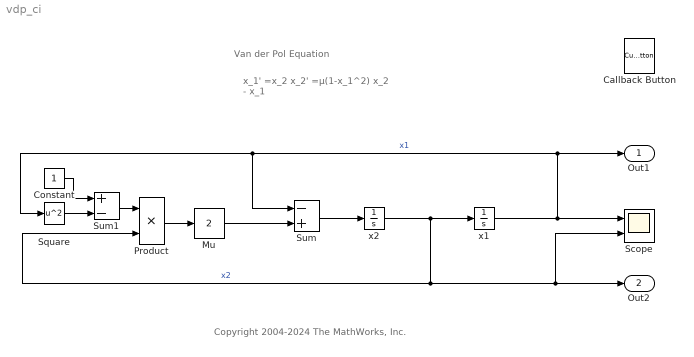
/*
 * vdp_ci.c
 *
 * Code generation for model "vdp_ci".
 *
 * Model version              : 13.2
 * Simulink Coder version : 26.1 (R2026a) 20-Nov-2025
 * C source code generated on : Fri Sep 25 10:50:05 2026
 *
 * Target selection: grt.tlc
 * Note: GRT includes extra infrastructure and instrumentation for prototyping
 * Embedded hardware selection: 32-bit Generic
 * Emulation hardware selection:
 *    Differs from embedded hardware (MATLAB Host)
 * Code generation objectives: Unspecified
 * Validation result: Not run
 */

#include "vdp_ci.h"
#include "vdp_ci_private.h"
#include "rt_nonfinite.h"

/* Block signals (default storage) */
B_vdp_ci_T vdp_ci_B;

/* Continuous states */
X_vdp_ci_T vdp_ci_X;

/* Disabled State Vector */
XDis_vdp_ci_T vdp_ci_XDis;

/* External outputs (root outports fed by signals with default storage) */
ExtY_vdp_ci_T vdp_ci_Y;

/* Real-time model */
static RT_MODEL_vdp_ci_T vdp_ci_M_;
RT_MODEL_vdp_ci_T *const vdp_ci_M = &vdp_ci_M_;

/*
 * This function updates continuous states using the ODE4 fixed-step
 * solver algorithm
 */
static void rt_ertODEUpdateContinuousStates(RTWSolverInfo *si )
{
  time_T t = rtsiGetT(si);
  time_T tnew = rtsiGetSolverStopTime(si);
  time_T h = rtsiGetStepSize(si);
  real_T *x = rtsiGetContStates(si);
  ODE4_IntgData *id = (ODE4_IntgData *)rtsiGetSolverData(si);
  real_T *y = id->y;
  real_T *f0 = id->f[0];
  real_T *f1 = id->f[1];
  real_T *f2 = id->f[2];
  real_T *f3 = id->f[3];
  real_T temp;
  int_T i;
  int_T nXc = 2;
  rtsiSetSimTimeStep(si,MINOR_TIME_STEP);

  /* Save the state values at time t in y, we'll use x as ynew. */
  (void) memcpy(y, x,
                (uint_T)nXc*sizeof(real_T));

  /* Assumes that rtsiSetT and ModelOutputs are up-to-date */
  /* f0 = f(t,y) */
  rtsiSetdX(si, f0);
  vdp_ci_derivatives();

  /* f1 = f(t + (h/2), y + (h/2)*f0) */
  temp = 0.5 * h;
  for (i = 0; i < nXc; i++) {
    x[i] = y[i] + (temp*f0[i]);
  }

  rtsiSetT(si, t + temp);
  rtsiSetdX(si, f1);
  vdp_ci_output();
  vdp_ci_derivatives();

  /* f2 = f(t + (h/2), y + (h/2)*f1) */
  for (i = 0; i < nXc; i++) {
    x[i] = y[i] + (temp*f1[i]);
  }

  rtsiSetdX(si, f2);
  vdp_ci_output();
  vdp_ci_derivatives();

  /* f3 = f(t + h, y + h*f2) */
  for (i = 0; i < nXc; i++) {
    x[i] = y[i] + (h*f2[i]);
  }

  rtsiSetT(si, tnew);
  rtsiSetdX(si, f3);
  vdp_ci_output();
  vdp_ci_derivatives();

  /* tnew = t + h
     ynew = y + (h/6)*(f0 + 2*f1 + 2*f2 + 2*f3) */
  temp = h / 6.0;
  for (i = 0; i < nXc; i++) {
    x[i] = y[i] + temp*(f0[i] + 2.0*f1[i] + 2.0*f2[i] + f3[i]);
  }

  rtsiSetSimTimeStep(si,MAJOR_TIME_STEP);
}

/* Model output function */
void vdp_ci_output(void)
{
  if (rtmIsMajorTimeStep(vdp_ci_M)) {
    /* set solver stop time */
    if (!(vdp_ci_M->Timing.clockTick0+1)) {
      rtsiSetSolverStopTime(&vdp_ci_M->solverInfo,
                            ((vdp_ci_M->Timing.clockTickH0 + 1) *
        vdp_ci_M->Timing.stepSize0 * 4294967296.0));
    } else {
      rtsiSetSolverStopTime(&vdp_ci_M->solverInfo, ((vdp_ci_M->Timing.clockTick0
        + 1) * vdp_ci_M->Timing.stepSize0 + vdp_ci_M->Timing.clockTickH0 *
        vdp_ci_M->Timing.stepSize0 * 4294967296.0));
    }
  }                                    /* end MajorTimeStep */

  /* Update absolute time of base rate at minor time step */
  if (rtmIsMinorTimeStep(vdp_ci_M)) {
    vdp_ci_M->Timing.t[0] = rtsiGetT(&vdp_ci_M->solverInfo);
  }

  /* Integrator: '<Root>/x1' */
  vdp_ci_B.x1 = vdp_ci_X.x1_CSTATE;

  /* Outport: '<Root>/Out1' */
  vdp_ci_Y.Out1 = vdp_ci_B.x1;

  /* Integrator: '<Root>/x2' */
  vdp_ci_B.x2 = vdp_ci_X.x2_CSTATE;

  /* Outport: '<Root>/Out2' */
  vdp_ci_Y.Out2 = vdp_ci_B.x2;
  if (rtmIsMajorTimeStep(vdp_ci_M) &&
      vdp_ci_M->Timing.TaskCounters.TID[1] == 0) {
  }

  /* Sum: '<Root>/Sum' incorporates:
   *  Constant: '<Root>/Constant'
   *  Gain: '<S1>/Slider Gain'
   *  Math: '<Root>/Square'
   *  Product: '<Root>/Product'
   *  Sum: '<Root>/Sum1'
   */
  vdp_ci_B.Sum = (vdp_ci_P.Constant_Value - vdp_ci_B.x1 * vdp_ci_B.x1) *
    vdp_ci_B.x2 * vdp_ci_P.Mu_gain - vdp_ci_B.x1;
}

/* Model update function */
void vdp_ci_update(void)
{
  if (rtmIsMajorTimeStep(vdp_ci_M)) {
    rt_ertODEUpdateContinuousStates(&vdp_ci_M->solverInfo);
  }

  /* Update absolute time for base rate */
  /* The "clockTick0" counts the number of times the code of this task has
   * been executed. The absolute time is the multiplication of "clockTick0"
   * and "Timing.stepSize0". Size of "clockTick0" ensures timer will not
   * overflow during the application lifespan selected.
   * Timer of this task consists of two 32 bit unsigned integers.
   * The two integers represent the low bits Timing.clockTick0 and the high bits
   * Timing.clockTickH0. When the low bit overflows to 0, the high bits increment.
   */
  if (!(++vdp_ci_M->Timing.clockTick0)) {
    ++vdp_ci_M->Timing.clockTickH0;
  }

  vdp_ci_M->Timing.t[0] = rtsiGetSolverStopTime(&vdp_ci_M->solverInfo);

  {
    /* Update absolute timer for sample time: [0.01s, 0.0s] */
    /* The "clockTick1" counts the number of times the code of this task has
     * been executed. The absolute time is the multiplication of "clockTick1"
     * and "Timing.stepSize1". Size of "clockTick1" ensures timer will not
     * overflow during the application lifespan selected.
     * Timer of this task consists of two 32 bit unsigned integers.
     * The two integers represent the low bits Timing.clockTick1 and the high bits
     * Timing.clockTickH1. When the low bit overflows to 0, the high bits increment.
     */
    if (!(++vdp_ci_M->Timing.clockTick1)) {
      ++vdp_ci_M->Timing.clockTickH1;
    }

    vdp_ci_M->Timing.t[1] = vdp_ci_M->Timing.clockTick1 *
      vdp_ci_M->Timing.stepSize1 + vdp_ci_M->Timing.clockTickH1 *
      vdp_ci_M->Timing.stepSize1 * 4294967296.0;
  }
}
